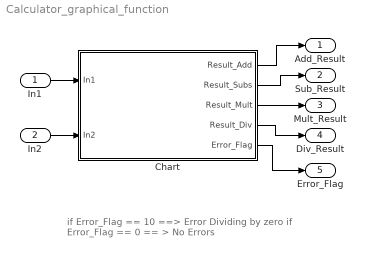
== stateflow chart Calculator_graphical_function/Chart ==
  state Add(In1,In2) [function]
    (default) -> (junction 11) : {Result_Add = In1+In2;}
  state Sub(In1,In2) [function]
    (default) -> (junction 20) : {Result_Subs = In1-In2;}
  state Mult(In1,In2) [function]
    (default) -> (junction 25) : {Result_Mult = In1*In2;}
  state Div(In1,In2) [function]
    (default) -> (junction 46) : /* Division */
    (junction 46) -> (junction 47) [order 1] : [In2!=0]
    (junction 46) -> (junction 48) [order 2] : {Error_Flag=10;}
    (junction 47) -> (junction 49) : {Result_Div = In1/In2;}
    (junction 49) -> (junction 48)
    (junction 48) -> (junction 50)
  (default) -> (junction 4) : {Add(In1,In2); Sub(In1,In2); Mult(In1,In2); Div(In1,In2); }
  data: In1 function_input double; In2 function_input double; In1 function_input double; In2 function_input double; In1 function_input double; In2 function_input double; In1 function_input double; In2 function_input double; In1 input int16; In2 input int16; Result_Add output int16; Result_Subs output int16; Result_Mult output int16; Result_Div output double; Error_Flag output int16

/*
 * File: Calculator_graphical_function.c
 *
 * Code generated for Simulink model 'Calculator_graphical_function'.
 *
 * Model version                  : 1.6
 * Simulink Coder version         : 8.14 (R2018a) 06-Feb-2018
 * C/C++ source code generated on : Mon Nov  7 19:41:29 2022
 *
 * Target selection: ert.tlc
 * Embedded hardware selection: Intel->x86-64 (Windows64)
 * Code generation objectives:
 *    1. Execution efficiency
 *    2. ROM efficiency
 *    3. MISRA C:2012 guidelines
 * Validation result: Not run
 */

#include "Calculator_graphical_function.h"
#include "Calculator_graphical_function_private.h"

/* External inputs (root inport signals with default storage) */
ExtU_Calculator_graphical_fun_T Calculator_graphical_function_U;

/* External outputs (root outports fed by signals with default storage) */
ExtY_Calculator_graphical_fun_T Calculator_graphical_function_Y;

/* Real-time model */
RT_MODEL_Calculator_graphical_T Calculator_graphical_functio_M_;
RT_MODEL_Calculator_graphical_T *const Calculator_graphical_functio_M =
  &Calculator_graphical_functio_M_;

/* Forward declaration for local functions */
static void Calculator_graphical_functi_Add(real_T In1, real_T In2);
static void Calculator_graphical_functi_Sub(real_T In1, real_T In2);
static void Calculator_graphical_funct_Mult(real_T In1, real_T In2);
static void Calculator_graphical_functi_Div(real_T In1, real_T In2);

/* Function for Chart: '<Root>/Chart' */
static void Calculator_graphical_functi_Add(real_T In1, real_T In2)
{
  real_T tmp;
  tmp = In1 + In2;
  if (tmp < 32768.0) {
    if (tmp >= -32768.0) {
      /* Outport: '<Root>/Add_Result' */
      Calculator_graphical_function_Y.Add_Result = (int16_T)tmp;
    } else {
      /* Outport: '<Root>/Add_Result' */
      Calculator_graphical_function_Y.Add_Result = MIN_int16_T;
    }
  } else {
    /* Outport: '<Root>/Add_Result' */
    Calculator_graphical_function_Y.Add_Result = MAX_int16_T;
  }
}

/* Function for Chart: '<Root>/Chart' */
static void Calculator_graphical_functi_Sub(real_T In1, real_T In2)
{
  real_T tmp;
  tmp = In1 - In2;
  if (tmp < 32768.0) {
    if (tmp >= -32768.0) {
      /* Outport: '<Root>/Sub_Result' */
      Calculator_graphical_function_Y.Sub_Result = (int16_T)tmp;
    } else {
      /* Outport: '<Root>/Sub_Result' */
      Calculator_graphical_function_Y.Sub_Result = MIN_int16_T;
    }
  } else {
    /* Outport: '<Root>/Sub_Result' */
    Calculator_graphical_function_Y.Sub_Result = MAX_int16_T;
  }
}

/* Function for Chart: '<Root>/Chart' */
static void Calculator_graphical_funct_Mult(real_T In1, real_T In2)
{
  real_T tmp;
  tmp = In1 * In2;
  if (tmp < 32768.0) {
    if (tmp >= -32768.0) {
      /* Outport: '<Root>/Mult_Result' */
      Calculator_graphical_function_Y.Mult_Result = (int16_T)tmp;
    } else {
      /* Outport: '<Root>/Mult_Result' */
      Calculator_graphical_function_Y.Mult_Result = MIN_int16_T;
    }
  } else {
    /* Outport: '<Root>/Mult_Result' */
    Calculator_graphical_function_Y.Mult_Result = MAX_int16_T;
  }
}

/* Function for Chart: '<Root>/Chart' */
static void Calculator_graphical_functi_Div(real_T In1, real_T In2)
{
  /*  Division  */
  if (In2 != 0.0) {
    /* Outport: '<Root>/Div_Result' */
    Calculator_graphical_function_Y.Div_Result = In1 / In2;
  } else {
    /* Outport: '<Root>/Error_Flag' */
    Calculator_graphical_function_Y.Error_Flag = 10;
  }
}

/* Model step function */
void Calculator_graphical_function_step(void)
{
  /* Chart: '<Root>/Chart' incorporates:
   *  Inport: '<Root>/In1'
   *  Inport: '<Root>/In2'
   */
  Calculator_graphical_functi_Add((real_T)Calculator_graphical_function_U.In1,
    (real_T)Calculator_graphical_function_U.In2);
  Calculator_graphical_functi_Sub((real_T)Calculator_graphical_function_U.In1,
    (real_T)Calculator_graphical_function_U.In2);
  Calculator_graphical_funct_Mult((real_T)Calculator_graphical_function_U.In1,
    (real_T)Calculator_graphical_function_U.In2);
  Calculator_graphical_functi_Div((real_T)Calculator_graphical_function_U.In1,
    (real_T)Calculator_graphical_function_U.In2);
}
